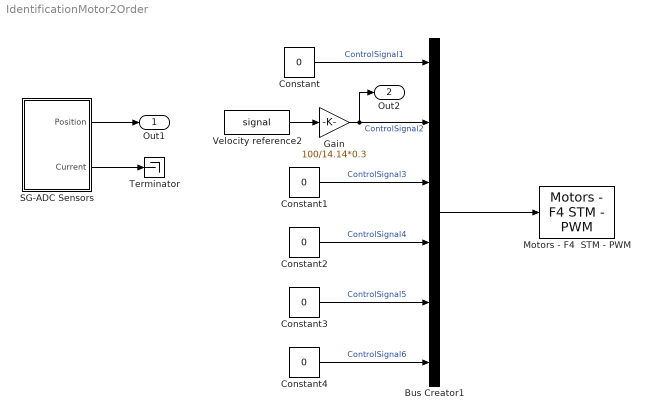
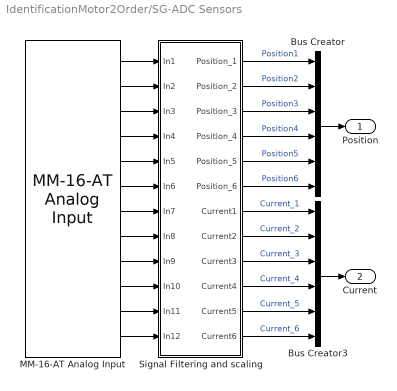
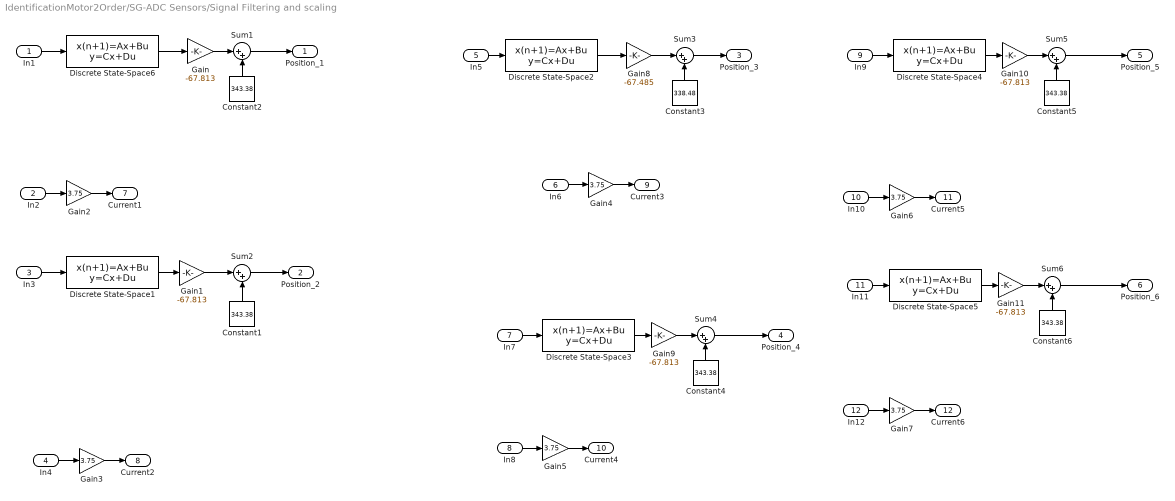
/*
 * IdentificationMotor2Order.c
 *
 * Code generation for model "IdentificationMotor2Order.mdl".
 *
 * Model version              : 1.118
 * Simulink Coder version : 8.0 (R2011a) 09-Mar-2011
 * C source code generated on : Mon Jan 31 16:04:55 2022
 *
 * Target selection: xpctarget.tlc
 * Note: GRT includes extra infrastructure and instrumentation for prototyping
 * Embedded hardware selection: Generic->32-bit x86 compatible
 * Code generation objectives: Unspecified
 * Validation result: Not run
 */

#include "rt_logging_mmi.h"
#include "IdentificationMotor2Order_capi.h"
#include "IdentificationMotor2Order.h"
#include "IdentificationMotor2Order_private.h"
#include <stdio.h>
#include "IdentificationMotor2Order_dt.h"

const uint8_T IdentificationMotor2Order_U8GND = 0U;/* uint8_T ground */

/* Block signals (auto storage) */
BlockIO_IdentificationMotor2Order IdentificationMotor2Order_B;

/* Block states (auto storage) */
D_Work_IdentificationMotor2Order IdentificationMotor2Order_DWork;

/* External outputs (root outports fed by signals with auto storage) */
ExternalOutputs_IdentificationMotor2Order IdentificationMotor2Order_Y;

/* Real-time model */
rtModel_IdentificationMotor2Order IdentificationMotor2Order_rtM_;
rtModel_IdentificationMotor2Order *const IdentificationMotor2Order_rtM =
  &IdentificationMotor2Order_rtM_;

/* xPC Target Async Interrupt Block '<S3>/IRQ Source' */
void xPCISR1(void)
{
  {
    /* RTWBLOCK_START_COMMENT */
    /* RTWBLOCK_START_COMMENT */
    /* RTWBLOCK_START_COMMENT */
    /* RTWBLOCK_START_COMMENT */
    /* Reset subsysRan breadcrumbs */
    srClearBC(IdentificationMotor2Order_DWork.Receive1_SubsysRanBC);

    /* Reset subsysRan breadcrumbs */
    srClearBC(IdentificationMotor2Order_DWork.Transmit1_SubsysRanBC);

    /* Reset subsysRan breadcrumbs */
    srClearBC(IdentificationMotor2Order_DWork.Receive2_SubsysRanBC);

    /* Reset subsysRan breadcrumbs */
    srClearBC(IdentificationMotor2Order_DWork.Transmit2_SubsysRanBC);

    /* Reset subsysRan breadcrumbs */
    srClearBC(IdentificationMotor2Order_DWork.RS232ISR_SubsysRanBC);

    /* RateTransition: '<S3>/Rate Transition' */
    /* RTWBLOCK_START_COMMENT */
    IdentificationMotor2Order_B.RateTransition =
      IdentificationMotor2Order_B.FIFOwrite1_o1;

    /* RateTransition: '<S3>/Rate Transition2' */
    IdentificationMotor2Order_B.RateTransition2 =
      IdentificationMotor2Order_B.FIFOwrite2_o1;
    IdentificationMotor2Or_RS232ISR(0);
  }
}

/* Start for function-call system: '<S3>/RS232 ISR' */
void IdentificationMo_RS232ISR_Start(void)
{
  /* Start for function-call system: '<S16>/Receive 1' */

  /* S-Function Block: <S17>/Read HW FIFO1 (serreadbase) */
  {
    int count = 0;

    // Flush the hardware fifo on startup.
    while (xpcInpB( (unsigned short)(1016 + LSR) ) & LSRDR ) {
      // Read and discard the data.
      xpcInpB( (unsigned short)(1016 + DATA) );
      if (count++ > 1000 ) {
        static char msg[50];
        sprintf( msg, "A UART at address 0x%x is not responding", 1016 );

        // No baseboard UART has that large a hardware fifo!
        rtmSetErrorStatus(IdentificationMotor2Order_rtM, msg);
        return;
      }
    }
  }

  /* Level2 S-Function Block: '<S17>/FIFO write 1' (fifowrite) */
  {
    SimStruct *rts = IdentificationMotor2Order_rtM->childSfunctions[0];
    sfcnStart(rts);
    if (ssGetErrorStatus(rts) != (NULL))
      return;
  }

  /* Start for function-call system: '<S16>/Transmit 1' */

  /* Level2 S-Function Block: '<S19>/FIFO read 1' (fiforead) */
  {
    SimStruct *rts = IdentificationMotor2Order_rtM->childSfunctions[1];
    sfcnStart(rts);
    if (ssGetErrorStatus(rts) != (NULL))
      return;
  }

  /* Start for function-call system: '<S16>/Receive 2' */

  /* Level2 S-Function Block: '<S18>/FIFO write 2' (fifowrite) */
  {
    SimStruct *rts = IdentificationMotor2Order_rtM->childSfunctions[2];
    sfcnStart(rts);
    if (ssGetErrorStatus(rts) != (NULL))
      return;
  }

  /* Start for function-call system: '<S16>/Transmit 2' */

  /* Level2 S-Function Block: '<S20>/FIFO read 2' (fiforead) */
  {
    SimStruct *rts = IdentificationMotor2Order_rtM->childSfunctions[3];
    sfcnStart(rts);
    if (ssGetErrorStatus(rts) != (NULL))
      return;
  }
}

/* Output and update for function-call system: '<S3>/RS232 ISR' */
void IdentificationMotor2Or_RS232ISR(int_T controlPortIdx)
{
  /* S-Function Block: <S16>/Read Int Status FC1 (iquerybase) */
  {
    int base[2] = { (int)1016, (int)0 };

    uint32_T port, max;
    volatile int iir;                  // local interrupt register, per uart
    for (port = 0 ; port < 2 ; port++ ) {
      if (base[port] == 0 ) {
        continue;
      }

      iir = xpcInpB( (unsigned short)(base[port] + IIR) ) & 0xff;

      //printf("lint = 0x%x\n", iir );
      if ((iir & (IIRFEBL | IIR64) ) == (IIRFEBL | IIR64) )
        max = 60;
      else if ((iir & (IIRFEBL | IIR64) ) == IIRFEBL )
        max = 15;
      else
        max = 1;
      *&IdentificationMotor2Order_B.ReadIntStatusFC1_o2 = max;
      iir &= IIRREASON;
      while (iir != 1 )                // Service all reasons
      {
        switch ( iir )
        {
         case 1:                       // No interrupt on this UART
          break;

         case 4:                       // received data available
         case 6:                       // receiver line status, overrun etc.
         case 0xc:                     // character timeout
          //printf("%1xa", base[i]>>8);
          // All three are receive interrupts
          switch (port)
          {
           case 0:
            /* Output and update for function-call system: '<S16>/Receive 1' */

            /* S-Function (serreadbase): '<S17>/Read HW FIFO1' */
            {
              /* S-Function Block: <S17>/Read HW FIFO1 (serreadbase) */
              int status = 0;
              int count = 0;

              // While there is data in the fifo, read it, also read error status.
              // Cap the read length to the interrupt point in 64 byte fifo mode.
              while (((status = xpcInpB( (unsigned short)(1016 + LSR) ) & 0xff )
                      & LSRDR) && (count < 56) ) {
                int c;
                int masked;
                count++;
                c = xpcInpB( (unsigned short)(1016 + DATA) ) & 0xff;// read character
                masked = status & (LSROE | LSRPE | LSRFE | LSRBI);
                ((int_T *)IdentificationMotor2Order_B.ReadHWFIFO1)[count] =
                  (masked << 8) | c;
              }

              ((int_T *)IdentificationMotor2Order_B.ReadHWFIFO1)[0] = count;
            }

            /* Level2 S-Function Block: '<S17>/FIFO write 1' (fifowrite) */
            {
              SimStruct *rts = IdentificationMotor2Order_rtM->childSfunctions[0];
              sfcnOutputs(rts, 1);
            }

            IdentificationMotor2Order_DWork.Receive1_SubsysRanBC = 4;
            break;
          }
          break;

         case 2:                       // Transmitter holding register empty
          //printf("%1xb", base[i]>>8);
          switch (port)
          {
           case 0:
            /* Output and update for function-call system: '<S16>/Transmit 1' */

            /* Level2 S-Function Block: '<S19>/FIFO read 1' (fiforead) */
            {
              SimStruct *rts = IdentificationMotor2Order_rtM->childSfunctions[1];
              sfcnOutputs(rts, 1);
            }

            /* S-Function (serwritebase): '<S19>/Write HW FIFO1' */
            {
              /* S-Function Block: <S19>/Write HW FIFO1 (serwritebase) */
              int_T *IPtr = (int_T *)IdentificationMotor2Order_B.FIFOread1_o1;
              if (IdentificationMotor2Order_B.FIFOread1_o2 > 0 ) {
                // On entry, verify that the transmitter holding register is empty
                // so we can stuff all that came from the software fifo into the
                // hardware fifo.  Assume that the software fifo has a max read
                // parameter that fits with the hardware fifo mode setting.
                if (IPtr[0] == 0 ) {
                  // No data, turn off the transmitter empty interrupt and leave
                  int ier = xpcInpB( (unsigned short)(1016 + IER) ) & 0xff;
                  xpcOutpB( (unsigned short)(1016 + IER), (uint8_T)(ier &
                            ~IERXMT) );
                } else if (xpcInpB( (unsigned short)(1016 + LSR) ) & LSRTHRE ) {
                  int i;

                  // Copy all the data from the input vector to the HW fifo.
                  // The fifo read block MUST have the correct max read value
                  // for the fifo mode.
                  for (i = 0 ; i < IPtr[0] ; i++ ) {
                    xpcOutpB( (ushort_T)(1016 + DATA), (uint8_T)(IPtr[i+1] &
                              0xff) );
                  }
                } else {
                  rtmSetErrorStatus(IdentificationMotor2Order_rtM,
                                    "Attempted write to hardware fifo that isn't empty");
                  return;
                }
              }
            }

            IdentificationMotor2Order_DWork.Transmit1_SubsysRanBC = 4;
            break;
          }
          break;

         case 0:
          // Modem status change
          break;
        }

        // Read IIR again to see if we're done with this UART
        iir = xpcInpB( (unsigned short)(base[port] + IIR) ) & IIRREASON;
      }
    }
  }

  IdentificationMotor2Order_DWork.RS232ISR_SubsysRanBC = 4;
}

/*
 * Output and update for action system:
 *    '<S1>/If Action Subsystem'
 *    '<S1>/If Action Subsystem2'
 *    '<S1>/If Action Subsystem4'
 *    '<S1>/If Action Subsystem6'
 *    '<S1>/If Action Subsystem8'
 *    '<S1>/If Action Subsystem10'
 */
void Identificatio_IfActionSubsystem(real_T rtu_In1, real_T *rty_Out1,
  rtB_IfActionSubsystem_Identific *localB, rtP_IfActionSubsystem_Identific
  *localP)
{
  /* Sum: '<S4>/Sum' incorporates:
   *  Constant: '<S4>/Constant8'
   */
  localB->Sum = rtu_In1 + localP->Constant8_Value;

  /* Rounding: '<S4>/Rounding Function' */
  (*rty_Out1) = ceil(localB->Sum);
}

/*
 * Output and update for action system:
 *    '<S1>/If Action Subsystem1'
 *    '<S1>/If Action Subsystem3'
 *    '<S1>/If Action Subsystem5'
 *    '<S1>/If Action Subsystem7'
 *    '<S1>/If Action Subsystem9'
 *    '<S1>/If Action Subsystem11'
 */
void Identificati_IfActionSubsystem1(real_T rtu_In1, real_T *rty_Out1,
  rtB_IfActionSubsystem1_Identifi *localB, rtP_IfActionSubsystem1_Identifi
  *localP)
{
  /* Gain: '<S5>/Gain' */
  localB->Gain = localP->Gain_Gain * rtu_In1;

  /* Sum: '<S5>/Sum' incorporates:
   *  Constant: '<S5>/Constant8'
   */
  localB->Sum = localB->Gain + localP->Constant8_Value;

  /* Rounding: '<S5>/Rounding Function' */
  (*rty_Out1) = ceil(localB->Sum);
}

/* Model output function */
void IdentificationMotor2Order_output(int_T tid)
{
  real_T u;
  real_T u_0;
  real_T u_1;

  /* RTWBLOCK_START_COMMENT */
  /* Reset subsysRan breadcrumbs */
  srClearBC
    (IdentificationMotor2Order_DWork.IfActionSubsystem.IfActionSubsystem_SubsysRanBC);

  /* Reset subsysRan breadcrumbs */
  srClearBC
    (IdentificationMotor2Order_DWork.IfActionSubsystem1.IfActionSubsystem1_SubsysRanBC);

  /* RTWBLOCK_START_COMMENT */

  /* Level2 S-Function Block: '<S2>/MM-16-AT Analog Input' (addiamondmm16atcustom) */
  {
    SimStruct *rts = IdentificationMotor2Order_rtM->childSfunctions[4];
    sfcnOutputs(rts, 0);
  }

  /* DiscreteStateSpace: '<S21>/Discrete State-Space6' */
  {
    IdentificationMotor2Order_B.DiscreteStateSpace6 =
      (IdentificationMotor2Order_P.DiscreteStateSpace6_C[0])*
      IdentificationMotor2Order_DWork.DiscreteStateSpace6_DSTATE[0]
      + (IdentificationMotor2Order_P.DiscreteStateSpace6_C[1])*
      IdentificationMotor2Order_DWork.DiscreteStateSpace6_DSTATE[1];
    IdentificationMotor2Order_B.DiscreteStateSpace6 +=
      IdentificationMotor2Order_P.DiscreteStateSpace6_D*
      IdentificationMotor2Order_B.MM16ATAnalogInput_o1;
  }

  /* Gain: '<S21>/Gain' */
  IdentificationMotor2Order_B.Gain = IdentificationMotor2Order_P.Gain_Gain *
    IdentificationMotor2Order_B.DiscreteStateSpace6;

  /* Sum: '<S21>/Sum1' incorporates:
   *  Constant: '<S21>/Constant2'
   */
  IdentificationMotor2Order_B.Sum1 = IdentificationMotor2Order_B.Gain +
    IdentificationMotor2Order_P.Constant2_Value;

  /* DiscreteStateSpace: '<S21>/Discrete State-Space1' */
  {
    IdentificationMotor2Order_B.DiscreteStateSpace1 =
      (IdentificationMotor2Order_P.DiscreteStateSpace1_C[0])*
      IdentificationMotor2Order_DWork.DiscreteStateSpace1_DSTATE[0]
      + (IdentificationMotor2Order_P.DiscreteStateSpace1_C[1])*
      IdentificationMotor2Order_DWork.DiscreteStateSpace1_DSTATE[1];
    IdentificationMotor2Order_B.DiscreteStateSpace1 +=
      IdentificationMotor2Order_P.DiscreteStateSpace1_D*
      IdentificationMotor2Order_B.MM16ATAnalogInput_o3;
  }

  /* Gain: '<S21>/Gain1' */
  IdentificationMotor2Order_B.Gain1 = IdentificationMotor2Order_P.Gain1_Gain *
    IdentificationMotor2Order_B.DiscreteStateSpace1;

  /* Sum: '<S21>/Sum2' incorporates:
   *  Constant: '<S21>/Constant1'
   */
  IdentificationMotor2Order_B.Sum2 = IdentificationMotor2Order_B.Gain1 +
    IdentificationMotor2Order_P.Constant1_Value;

  /* DiscreteStateSpace: '<S21>/Discrete State-Space2' */
  {
    IdentificationMotor2Order_B.DiscreteStateSpace2 =
      (IdentificationMotor2Order_P.DiscreteStateSpace2_C[0])*
      IdentificationMotor2Order_DWork.DiscreteStateSpace2_DSTATE[0]
      + (IdentificationMotor2Order_P.DiscreteStateSpace2_C[1])*
      IdentificationMotor2Order_DWork.DiscreteStateSpace2_DSTATE[1];
    IdentificationMotor2Order_B.DiscreteStateSpace2 +=
      IdentificationMotor2Order_P.DiscreteStateSpace2_D*
      IdentificationMotor2Order_B.MM16ATAnalogInput_o5;
  }

  /* Gain: '<S21>/Gain8' */
  IdentificationMotor2Order_B.Gain8 = IdentificationMotor2Order_P.Gain8_Gain *
    IdentificationMotor2Order_B.DiscreteStateSpace2;

  /* Sum: '<S21>/Sum3' incorporates:
   *  Constant: '<S21>/Constant3'
   */
  IdentificationMotor2Order_B.Sum3 = IdentificationMotor2Order_B.Gain8 +
    IdentificationMotor2Order_P.Constant3_Value;

  /* DiscreteStateSpace: '<S21>/Discrete State-Space3' */
  {
    IdentificationMotor2Order_B.DiscreteStateSpace3 =
      (IdentificationMotor2Order_P.DiscreteStateSpace3_C[0])*
      IdentificationMotor2Order_DWork.DiscreteStateSpace3_DSTATE[0]
      + (IdentificationMotor2Order_P.DiscreteStateSpace3_C[1])*
      IdentificationMotor2Order_DWork.DiscreteStateSpace3_DSTATE[1];
    IdentificationMotor2Order_B.DiscreteStateSpace3 +=
      IdentificationMotor2Order_P.DiscreteStateSpace3_D*
      IdentificationMotor2Order_B.MM16ATAnalogInput_o7;
  }

  /* Gain: '<S21>/Gain9' */
  IdentificationMotor2Order_B.Gain9 = IdentificationMotor2Order_P.Gain9_Gain *
    IdentificationMotor2Order_B.DiscreteStateSpace3;

  /* Sum: '<S21>/Sum4' incorporates:
   *  Constant: '<S21>/Constant4'
   */
  IdentificationMotor2Order_B.Sum4 = IdentificationMotor2Order_B.Gain9 +
    IdentificationMotor2Order_P.Constant4_Value;

  /* DiscreteStateSpace: '<S21>/Discrete State-Space4' */
  {
    IdentificationMotor2Order_B.DiscreteStateSpace4 =
      (IdentificationMotor2Order_P.DiscreteStateSpace4_C[0])*
      IdentificationMotor2Order_DWork.DiscreteStateSpace4_DSTATE[0]
      + (IdentificationMotor2Order_P.DiscreteStateSpace4_C[1])*
      IdentificationMotor2Order_DWork.DiscreteStateSpace4_DSTATE[1];
    IdentificationMotor2Order_B.DiscreteStateSpace4 +=
      IdentificationMotor2Order_P.DiscreteStateSpace4_D*
      IdentificationMotor2Order_B.MM16ATAnalogInput_o9;
  }

  /* Gain: '<S21>/Gain10' */
  IdentificationMotor2Order_B.Gain10 = IdentificationMotor2Order_P.Gain10_Gain *
    IdentificationMotor2Order_B.DiscreteStateSpace4;

  /* Sum: '<S21>/Sum5' incorporates:
   *  Constant: '<S21>/Constant5'
   */
  IdentificationMotor2Order_B.Sum5 = IdentificationMotor2Order_B.Gain10 +
    IdentificationMotor2Order_P.Constant5_Value;

  /* DiscreteStateSpace: '<S21>/Discrete State-Space5' */
  {
    IdentificationMotor2Order_B.DiscreteStateSpace5 =
      (IdentificationMotor2Order_P.DiscreteStateSpace5_C[0])*
      IdentificationMotor2Order_DWork.DiscreteStateSpace5_DSTATE[0]
      + (IdentificationMotor2Order_P.DiscreteStateSpace5_C[1])*
      IdentificationMotor2Order_DWork.DiscreteStateSpace5_DSTATE[1];
    IdentificationMotor2Order_B.DiscreteStateSpace5 +=
      IdentificationMotor2Order_P.DiscreteStateSpace5_D*
      IdentificationMotor2Order_B.MM16ATAnalogInput_o11;
  }

  /* Gain: '<S21>/Gain11' */
  IdentificationMotor2Order_B.Gain11 = IdentificationMotor2Order_P.Gain11_Gain *
    IdentificationMotor2Order_B.DiscreteStateSpace5;

  /* Sum: '<S21>/Sum6' incorporates:
   *  Constant: '<S21>/Constant6'
   */
  IdentificationMotor2Order_B.Sum6 = IdentificationMotor2Order_B.Gain11 +
    IdentificationMotor2Order_P.Constant6_Value;

  /* Outport: '<Root>/Out1' */
  IdentificationMotor2Order_Y.Out1[0] = IdentificationMotor2Order_B.Sum1;
  IdentificationMotor2Order_Y.Out1[1] = IdentificationMotor2Order_B.Sum2;
  IdentificationMotor2Order_Y.Out1[2] = IdentificationMotor2Order_B.Sum3;
  IdentificationMotor2Order_Y.Out1[3] = IdentificationMotor2Order_B.Sum4;
  IdentificationMotor2Order_Y.Out1[4] = IdentificationMotor2Order_B.Sum5;
  IdentificationMotor2Order_Y.Out1[5] = IdentificationMotor2Order_B.Sum6;

  /* Gain: '<S21>/Gain2' */
  IdentificationMotor2Order_B.Gain2 = IdentificationMotor2Order_P.Gain2_Gain *
    IdentificationMotor2Order_B.MM16ATAnalogInput_o2;

  /* Gain: '<S21>/Gain3' */
  IdentificationMotor2Order_B.Gain3 = IdentificationMotor2Order_P.Gain3_Gain *
    IdentificationMotor2Order_B.MM16ATAnalogInput_o4;

  /* Gain: '<S21>/Gain4' */
  IdentificationMotor2Order_B.Gain4 = IdentificationMotor2Order_P.Gain4_Gain *
    IdentificationMotor2Order_B.MM16ATAnalogInput_o6;

  /* Gain: '<S21>/Gain5' */
  IdentificationMotor2Order_B.Gain5 = IdentificationMotor2Order_P.Gain5_Gain *
    IdentificationMotor2Order_B.MM16ATAnalogInput_o8;

  /* Gain: '<S21>/Gain6' */
  IdentificationMotor2Order_B.Gain6 = IdentificationMotor2Order_P.Gain6_Gain *
    IdentificationMotor2Order_B.MM16ATAnalogInput_o10;

  /* Gain: '<S21>/Gain7' */
  IdentificationMotor2Order_B.Gain7 = IdentificationMotor2Order_P.Gain7_Gain *
    IdentificationMotor2Order_B.MM16ATAnalogInput_o12;

  /* FromWorkspace: '<Root>/Velocity reference2' */
  {
    real_T *pDataValues = (real_T *)
      IdentificationMotor2Order_DWork.Velocityreference2_PWORK.DataPtr;
    real_T *pTimeValues = (real_T *)
      IdentificationMotor2Order_DWork.Velocityreference2_PWORK.TimePtr;
    int_T currTimeIndex =
      IdentificationMotor2Order_DWork.Velocityreference2_IWORK.PrevIndex;
    real_T t = IdentificationMotor2Order_rtM->Timing.t[0];
    if (t >= pTimeValues[399]) {
      IdentificationMotor2Order_B.Velocityreference2 = pDataValues[399];
    } else {
      /* get index */
      if (t <= pTimeValues[0]) {
        currTimeIndex = 0;
      } else if (t >= pTimeValues[399]) {
        currTimeIndex = 398;
      } else {
        if (t < pTimeValues[currTimeIndex]) {
          while (t < pTimeValues[currTimeIndex]) {
            currTimeIndex--;
          }
        } else {
          while (t >= pTimeValues[currTimeIndex + 1]) {
            currTimeIndex++;
          }
        }
      }

      IdentificationMotor2Order_DWork.Velocityreference2_IWORK.PrevIndex =
        currTimeIndex;

      /* post output */
      {
        real_T t1 = pTimeValues[currTimeIndex];
        real_T t2 = pTimeValues[currTimeIndex + 1];
        if (t1 == t2) {
          if (t < t1) {
            IdentificationMotor2Order_B.Velocityreference2 =
              pDataValues[currTimeIndex];
          } else {
            IdentificationMotor2Order_B.Velocityreference2 =
              pDataValues[currTimeIndex + 1];
          }
        } else {
          real_T f1 = (t2 - t) / (t2 - t1);
          real_T f2 = 1.0 - f1;
          real_T d1;
          real_T d2;
          int_T TimeIndex= currTimeIndex;
          d1 = pDataValues[TimeIndex];
          d2 = pDataValues[TimeIndex + 1];
          IdentificationMotor2Order_B.Velocityreference2 = (real_T)
            rtInterpolate(d1, d2, f1, f2);
          pDataValues += 400;
        }
      }
    }
  }

  /* Gain: '<Root>/Gain' */
  IdentificationMotor2Order_B.ControlSignal2 =
    IdentificationMotor2Order_P.Gain_Gain_b *
    IdentificationMotor2Order_B.Velocityreference2;

  /* Outport: '<Root>/Out2' */
  IdentificationMotor2Order_Y.Out2 = IdentificationMotor2Order_B.ControlSignal2;

  /* Saturate: '<S1>/Saturation' incorporates:
   *  Constant: '<Root>/Constant'
   */
  u = IdentificationMotor2Order_P.Constant_Value;
  u_0 = IdentificationMotor2Order_P.Saturation_LowerSat;
  u_1 = IdentificationMotor2Order_P.Saturation_UpperSat;
  IdentificationMotor2Order_B.Saturation = u >= u_1 ? u_1 : u <= u_0 ? u_0 : u;

  /* If: '<S1>/If' */
  if ((IdentificationMotor2Order_B.Saturation >= 0.0) &&
      (IdentificationMotor2Order_B.Saturation <= 100.0)) {
    /* Outputs for IfAction SubSystem: '<S1>/If Action Subsystem' incorporates:
     *  ActionPort: '<S4>/Action Port'
     */
    Identificatio_IfActionSubsystem(IdentificationMotor2Order_B.Saturation,
      &IdentificationMotor2Order_B.Merge,
      &IdentificationMotor2Order_B.IfActionSubsystem,
      (rtP_IfActionSubsystem_Identific *)
      &IdentificationMotor2Order_P.IfActionSubsystem);

    /* End of Outputs for SubSystem: '<S1>/If Action Subsystem' */
  } else {
    if ((IdentificationMotor2Order_B.Saturation < 0.0) &&
        (IdentificationMotor2Order_B.Saturation >= -100.0)) {
      /* Outputs for IfAction SubSystem: '<S1>/If Action Subsystem1' incorporates:
       *  ActionPort: '<S5>/Action Port'
       */
      Identificati_IfActionSubsystem1(IdentificationMotor2Order_B.Saturation,
        &IdentificationMotor2Order_B.Merge,
        &IdentificationMotor2Order_B.IfActionSubsystem1,
        (rtP_IfActionSubsystem1_Identifi *)
        &IdentificationMotor2Order_P.IfActionSubsystem1);

      /* End of Outputs for SubSystem: '<S1>/If Action Subsystem1' */
    }
  }

  /* End of If: '<S1>/If' */

  /* Saturate: '<S1>/Saturation1' */
  u = IdentificationMotor2Order_B.ControlSignal2;
  u_0 = IdentificationMotor2Order_P.Saturation1_LowerSat;
  u_1 = IdentificationMotor2Order_P.Saturation1_UpperSat;
  IdentificationMotor2Order_B.Saturation1 = u >= u_1 ? u_1 : u <= u_0 ? u_0 : u;

  /* If: '<S1>/If1' */
  if ((IdentificationMotor2Order_B.Saturation1 >= 0.0) &&
      (IdentificationMotor2Order_B.Saturation1 <= 100.0)) {
    /* Outputs for IfAction SubSystem: '<S1>/If Action Subsystem2' incorporates:
     *  ActionPort: '<S8>/Action Port'
     */
    Identificatio_IfActionSubsystem(IdentificationMotor2Order_B.Saturation1,
      &IdentificationMotor2Order_B.Merge1,
      &IdentificationMotor2Order_B.IfActionSubsystem2,
      (rtP_IfActionSubsystem_Identific *)
      &IdentificationMotor2Order_P.IfActionSubsystem2);

    /* End of Outputs for SubSystem: '<S1>/If Action Subsystem2' */
  } else {
    if ((IdentificationMotor2Order_B.Saturation1 < 0.0) &&
        (IdentificationMotor2Order_B.Saturation1 >= -100.0)) {
      /* Outputs for IfAction SubSystem: '<S1>/If Action Subsystem3' incorporates:
       *  ActionPort: '<S9>/Action Port'
       */
      Identificati_IfActionSubsystem1(IdentificationMotor2Order_B.Saturation1,
        &IdentificationMotor2Order_B.Merge1,
        &IdentificationMotor2Order_B.IfActionSubsystem3,
        (rtP_IfActionSubsystem1_Identifi *)
        &IdentificationMotor2Order_P.IfActionSubsystem3);

      /* End of Outputs for SubSystem: '<S1>/If Action Subsystem3' */
    }
  }

  /* End of If: '<S1>/If1' */

  /* Saturate: '<S1>/Saturation2' incorporates:
   *  Constant: '<Root>/Constant1'
   */
  u = IdentificationMotor2Order_P.Constant1_Value_l;
  u_0 = IdentificationMotor2Order_P.Saturation2_LowerSat;
  u_1 = IdentificationMotor2Order_P.Saturation2_UpperSat;
  IdentificationMotor2Order_B.Saturation2 = u >= u_1 ? u_1 : u <= u_0 ? u_0 : u;

  /* If: '<S1>/If2' */
  if ((IdentificationMotor2Order_B.Saturation2 >= 0.0) &&
      (IdentificationMotor2Order_B.Saturation2 <= 100.0)) {
    /* Outputs for IfAction SubSystem: '<S1>/If Action Subsystem4' incorporates:
     *  ActionPort: '<S10>/Action Port'
     */
    Identificatio_IfActionSubsystem(IdentificationMotor2Order_B.Saturation2,
      &IdentificationMotor2Order_B.Merge2,
      &IdentificationMotor2Order_B.IfActionSubsystem4,
      (rtP_IfActionSubsystem_Identific *)
      &IdentificationMotor2Order_P.IfActionSubsystem4);

    /* End of Outputs for SubSystem: '<S1>/If Action Subsystem4' */
  } else {
    if ((IdentificationMotor2Order_B.Saturation2 < 0.0) &&
        (IdentificationMotor2Order_B.Saturation2 >= -100.0)) {
      /* Outputs for IfAction SubSystem: '<S1>/If Action Subsystem5' incorporates:
       *  ActionPort: '<S11>/Action Port'
       */
      Identificati_IfActionSubsystem1(IdentificationMotor2Order_B.Saturation2,
        &IdentificationMotor2Order_B.Merge2,
        &IdentificationMotor2Order_B.IfActionSubsystem5,
        (rtP_IfActionSubsystem1_Identifi *)
        &IdentificationMotor2Order_P.IfActionSubsystem5);

      /* End of Outputs for SubSystem: '<S1>/If Action Subsystem5' */
    }
  }

  /* End of If: '<S1>/If2' */

  /* Saturate: '<S1>/Saturation3' incorporates:
   *  Constant: '<Root>/Constant2'
   */
  u = IdentificationMotor2Order_P.Constant2_Value_e;
  u_0 = IdentificationMotor2Order_P.Saturation3_LowerSat;
  u_1 = IdentificationMotor2Order_P.Saturation3_UpperSat;
  IdentificationMotor2Order_B.Saturation3 = u >= u_1 ? u_1 : u <= u_0 ? u_0 : u;

  /* If: '<S1>/If3' */
  if ((IdentificationMotor2Order_B.Saturation3 >= 0.0) &&
      (IdentificationMotor2Order_B.Saturation3 <= 100.0)) {
    /* Outputs for IfAction SubSystem: '<S1>/If Action Subsystem6' incorporates:
     *  ActionPort: '<S12>/Action Port'
     */
    Identificatio_IfActionSubsystem(IdentificationMotor2Order_B.Saturation3,
      &IdentificationMotor2Order_B.Merge3,
      &IdentificationMotor2Order_B.IfActionSubsystem6,
      (rtP_IfActionSubsystem_Identific *)
      &IdentificationMotor2Order_P.IfActionSubsystem6);

    /* End of Outputs for SubSystem: '<S1>/If Action Subsystem6' */
  } else {
    if ((IdentificationMotor2Order_B.Saturation3 < 0.0) &&
        (IdentificationMotor2Order_B.Saturation3 >= -100.0)) {
      /* Outputs for IfAction SubSystem: '<S1>/If Action Subsystem7' incorporates:
       *  ActionPort: '<S13>/Action Port'
       */
      Identificati_IfActionSubsystem1(IdentificationMotor2Order_B.Saturation3,
        &IdentificationMotor2Order_B.Merge3,
        &IdentificationMotor2Order_B.IfActionSubsystem7,
        (rtP_IfActionSubsystem1_Identifi *)
        &IdentificationMotor2Order_P.IfActionSubsystem7);

      /* End of Outputs for SubSystem: '<S1>/If Action Subsystem7' */
    }
  }

  /* End of If: '<S1>/If3' */

  /* Saturate: '<S1>/Saturation4' incorporates:
   *  Constant: '<Root>/Constant3'
   */
  u = IdentificationMotor2Order_P.Constant3_Value_a;
  u_0 = IdentificationMotor2Order_P.Saturation4_LowerSat;
  u_1 = IdentificationMotor2Order_P.Saturation4_UpperSat;
  IdentificationMotor2Order_B.Saturation4 = u >= u_1 ? u_1 : u <= u_0 ? u_0 : u;

  /* If: '<S1>/If4' */
  if ((IdentificationMotor2Order_B.Saturation4 >= 0.0) &&
      (IdentificationMotor2Order_B.Saturation4 <= 100.0)) {
    /* Outputs for IfAction SubSystem: '<S1>/If Action Subsystem8' incorporates:
     *  ActionPort: '<S14>/Action Port'
     */
    Identificatio_IfActionSubsystem(IdentificationMotor2Order_B.Saturation4,
      &IdentificationMotor2Order_B.Merge4,
      &IdentificationMotor2Order_B.IfActionSubsystem8,
      (rtP_IfActionSubsystem_Identific *)
      &IdentificationMotor2Order_P.IfActionSubsystem8);

    /* End of Outputs for SubSystem: '<S1>/If Action Subsystem8' */
  } else {
    if ((IdentificationMotor2Order_B.Saturation4 < 0.0) &&
        (IdentificationMotor2Order_B.Saturation4 >= -100.0)) {
      /* Outputs for IfAction SubSystem: '<S1>/If Action Subsystem9' incorporates:
       *  ActionPort: '<S15>/Action Port'
       */
      Identificati_IfActionSubsystem1(IdentificationMotor2Order_B.Saturation4,
        &IdentificationMotor2Order_B.Merge4,
        &IdentificationMotor2Order_B.IfActionSubsystem9,
        (rtP_IfActionSubsystem1_Identifi *)
        &IdentificationMotor2Order_P.IfActionSubsystem9);

      /* End of Outputs for SubSystem: '<S1>/If Action Subsystem9' */
    }
  }

  /* End of If: '<S1>/If4' */

  /* Saturate: '<S1>/Saturation5' incorporates:
   *  Constant: '<Root>/Constant4'
   */
  u = IdentificationMotor2Order_P.Constant4_Value_g;
  u_0 = IdentificationMotor2Order_P.Saturation5_LowerSat;
  u_1 = IdentificationMotor2Order_P.Saturation5_UpperSat;
  IdentificationMotor2Order_B.Saturation5 = u >= u_1 ? u_1 : u <= u_0 ? u_0 : u;

  /* If: '<S1>/If5' */
  if ((IdentificationMotor2Order_B.Saturation5 >= 0.0) &&
      (IdentificationMotor2Order_B.Saturation5 <= 100.0)) {
    /* Outputs for IfAction SubSystem: '<S1>/If Action Subsystem10' incorporates:
     *  ActionPort: '<S6>/Action Port'
     */
    Identificatio_IfActionSubsystem(IdentificationMotor2Order_B.Saturation5,
      &IdentificationMotor2Order_B.Merge5,
      &IdentificationMotor2Order_B.IfActionSubsystem10,
      (rtP_IfActionSubsystem_Identific *)
      &IdentificationMotor2Order_P.IfActionSubsystem10);

    /* End of Outputs for SubSystem: '<S1>/If Action Subsystem10' */
  } else {
    if ((IdentificationMotor2Order_B.Saturation5 < 0.0) &&
        (IdentificationMotor2Order_B.Saturation5 >= -100.0)) {
      /* Outputs for IfAction SubSystem: '<S1>/If Action Subsystem11' incorporates:
       *  ActionPort: '<S7>/Action Port'
       */
      Identificati_IfActionSubsystem1(IdentificationMotor2Order_B.Saturation5,
        &IdentificationMotor2Order_B.Merge5,
        &IdentificationMotor2Order_B.IfActionSubsystem11,
        (rtP_IfActionSubsystem1_Identifi *)
        &IdentificationMotor2Order_P.IfActionSubsystem11);

      /* End of Outputs for SubSystem: '<S1>/If Action Subsystem11' */
    }
  }

  /* End of If: '<S1>/If5' */

  /* Level2 S-Function Block: '<S1>/ASCII Encode ' (asciiencode) */
  {
    SimStruct *rts = IdentificationMotor2Order_rtM->childSfunctions[5];
    sfcnOutputs(rts, 0);
  }

  /* Level2 S-Function Block: '<S3>/FIFO write 1' (fifowrite) */
  {
    SimStruct *rts = IdentificationMotor2Order_rtM->childSfunctions[6];
    sfcnOutputs(rts, 0);
  }

  /* S-Function Block: <S3>/Enable TX 1 (sertxenablebase) */
  if (IdentificationMotor2Order_B.FIFOwrite1_o2 == 1 ) {
    uint8_T reg = (uint8_T)xpcInpB( (unsigned short)(1016 + IER) ) & 0xff;
    xpcOutpB( (unsigned short)(1016 + IER), (uint8_T)(reg & ~IERXMT) );
    reg |= IERXMT;
    xpcOutpB( (unsigned short)(1016 + IER), reg );
  }

  /* Level2 S-Function Block: '<S3>/FIFO write 2' (fifowrite) */
  {
    SimStruct *rts = IdentificationMotor2Order_rtM->childSfunctions[7];
    sfcnOutputs(rts, 0);
  }

  /* RateTransition: '<S3>/Rate Transition1' */
  IdentificationMotor2Order_B.RateTransition1 =
    IdentificationMotor2Order_B.FIFOwrite1;

  /* Level2 S-Function Block: '<S3>/FIFO read 1' (fiforead) */
  {
    SimStruct *rts = IdentificationMotor2Order_rtM->childSfunctions[8];
    sfcnOutputs(rts, 0);
  }

  /* RateTransition: '<S3>/Rate Transition3' */
  IdentificationMotor2Order_B.RateTransition3 =
    IdentificationMotor2Order_B.FIFOwrite2;

  /* Level2 S-Function Block: '<S3>/FIFO read 2' (fiforead) */
  {
    SimStruct *rts = IdentificationMotor2Order_rtM->childSfunctions[9];
    sfcnOutputs(rts, 0);
  }

  /* Level2 S-Function Block: '<S3>/Setup1' (sersetupbase) */
  {
    SimStruct *rts = IdentificationMotor2Order_rtM->childSfunctions[10];
    sfcnOutputs(rts, 0);
  }

  /* Level2 S-Function Block: '<S3>/Setup2' (sersetupbase) */
  {
    SimStruct *rts = IdentificationMotor2Order_rtM->childSfunctions[11];
    sfcnOutputs(rts, 0);
  }

  /* tid is required for a uniform function interface.
   * Argument tid is not used in the function. */
  UNUSED_PARAMETER(tid);
}

/* Model update function */
void IdentificationMotor2Order_update(int_T tid)
{
  /* Update for DiscreteStateSpace: '<S21>/Discrete State-Space6' */
  {
    real_T xnew[2];
    xnew[0] = (IdentificationMotor2Order_P.DiscreteStateSpace6_A[0])*
      IdentificationMotor2Order_DWork.DiscreteStateSpace6_DSTATE[0]
      + (IdentificationMotor2Order_P.DiscreteStateSpace6_A[1])*
      IdentificationMotor2Order_DWork.DiscreteStateSpace6_DSTATE[1];
    xnew[0] += (IdentificationMotor2Order_P.DiscreteStateSpace6_B[0])*
      IdentificationMotor2Order_B.MM16ATAnalogInput_o1;
    xnew[1] = (IdentificationMotor2Order_P.DiscreteStateSpace6_A[2])*
      IdentificationMotor2Order_DWork.DiscreteStateSpace6_DSTATE[0]
      + (IdentificationMotor2Order_P.DiscreteStateSpace6_A[3])*
      IdentificationMotor2Order_DWork.DiscreteStateSpace6_DSTATE[1];
    xnew[1] += (IdentificationMotor2Order_P.DiscreteStateSpace6_B[1])*
      IdentificationMotor2Order_B.MM16ATAnalogInput_o1;
    (void) memcpy(&IdentificationMotor2Order_DWork.DiscreteStateSpace6_DSTATE[0],
                  xnew,
                  sizeof(real_T)*2);
  }

  /* Update for DiscreteStateSpace: '<S21>/Discrete State-Space1' */
  {
    real_T xnew[2];
    xnew[0] = (IdentificationMotor2Order_P.DiscreteStateSpace1_A[0])*
      IdentificationMotor2Order_DWork.DiscreteStateSpace1_DSTATE[0]
      + (IdentificationMotor2Order_P.DiscreteStateSpace1_A[1])*
      IdentificationMotor2Order_DWork.DiscreteStateSpace1_DSTATE[1];
    xnew[0] += (IdentificationMotor2Order_P.DiscreteStateSpace1_B[0])*
      IdentificationMotor2Order_B.MM16ATAnalogInput_o3;
    xnew[1] = (IdentificationMotor2Order_P.DiscreteStateSpace1_A[2])*
      IdentificationMotor2Order_DWork.DiscreteStateSpace1_DSTATE[0]
      + (IdentificationMotor2Order_P.DiscreteStateSpace1_A[3])*
      IdentificationMotor2Order_DWork.DiscreteStateSpace1_DSTATE[1];
    xnew[1] += (IdentificationMotor2Order_P.DiscreteStateSpace1_B[1])*
      IdentificationMotor2Order_B.MM16ATAnalogInput_o3;
    (void) memcpy(&IdentificationMotor2Order_DWork.DiscreteStateSpace1_DSTATE[0],
                  xnew,
                  sizeof(real_T)*2);
  }

  /* Update for DiscreteStateSpace: '<S21>/Discrete State-Space2' */
  {
    real_T xnew[2];
    xnew[0] = (IdentificationMotor2Order_P.DiscreteStateSpace2_A[0])*
      IdentificationMotor2Order_DWork.DiscreteStateSpace2_DSTATE[0]
      + (IdentificationMotor2Order_P.DiscreteStateSpace2_A[1])*
      IdentificationMotor2Order_DWork.DiscreteStateSpace2_DSTATE[1];
    xnew[0] += (IdentificationMotor2Order_P.DiscreteStateSpace2_B[0])*
      IdentificationMotor2Order_B.MM16ATAnalogInput_o5;
    xnew[1] = (IdentificationMotor2Order_P.DiscreteStateSpace2_A[2])*
      IdentificationMotor2Order_DWork.DiscreteStateSpace2_DSTATE[0]
      + (IdentificationMotor2Order_P.DiscreteStateSpace2_A[3])*
      IdentificationMotor2Order_DWork.DiscreteStateSpace2_DSTATE[1];
    xnew[1] += (IdentificationMotor2Order_P.DiscreteStateSpace2_B[1])*
      IdentificationMotor2Order_B.MM16ATAnalogInput_o5;
    (void) memcpy(&IdentificationMotor2Order_DWork.DiscreteStateSpace2_DSTATE[0],
                  xnew,
                  sizeof(real_T)*2);
  }

  /* Update for DiscreteStateSpace: '<S21>/Discrete State-Space3' */
  {
    real_T xnew[2];
    xnew[0] = (IdentificationMotor2Order_P.DiscreteStateSpace3_A[0])*
      IdentificationMotor2Order_DWork.DiscreteStateSpace3_DSTATE[0]
      + (IdentificationMotor2Order_P.DiscreteStateSpace3_A[1])*
      IdentificationMotor2Order_DWork.DiscreteStateSpace3_DSTATE[1];
    xnew[0] += (IdentificationMotor2Order_P.DiscreteStateSpace3_B[0])*
      IdentificationMotor2Order_B.MM16ATAnalogInput_o7;
    xnew[1] = (IdentificationMotor2Order_P.DiscreteStateSpace3_A[2])*
      IdentificationMotor2Order_DWork.DiscreteStateSpace3_DSTATE[0]
      + (IdentificationMotor2Order_P.DiscreteStateSpace3_A[3])*
      IdentificationMotor2Order_DWork.DiscreteStateSpace3_DSTATE[1];
    xnew[1] += (IdentificationMotor2Order_P.DiscreteStateSpace3_B[1])*
      IdentificationMotor2Order_B.MM16ATAnalogInput_o7;
    (void) memcpy(&IdentificationMotor2Order_DWork.DiscreteStateSpace3_DSTATE[0],
                  xnew,
                  sizeof(real_T)*2);
  }

  /* Update for DiscreteStateSpace: '<S21>/Discrete State-Space4' */
  {
    real_T xnew[2];
    xnew[0] = (IdentificationMotor2Order_P.DiscreteStateSpace4_A[0])*
      IdentificationMotor2Order_DWork.DiscreteStateSpace4_DSTATE[0]
      + (IdentificationMotor2Order_P.DiscreteStateSpace4_A[1])*
      IdentificationMotor2Order_DWork.DiscreteStateSpace4_DSTATE[1];
    xnew[0] += (IdentificationMotor2Order_P.DiscreteStateSpace4_B[0])*
      IdentificationMotor2Order_B.MM16ATAnalogInput_o9;
    xnew[1] = (IdentificationMotor2Order_P.DiscreteStateSpace4_A[2])*
      IdentificationMotor2Order_DWork.DiscreteStateSpace4_DSTATE[0]
      + (IdentificationMotor2Order_P.DiscreteStateSpace4_A[3])*
      IdentificationMotor2Order_DWork.DiscreteStateSpace4_DSTATE[1];
    xnew[1] += (IdentificationMotor2Order_P.DiscreteStateSpace4_B[1])*
      IdentificationMotor2Order_B.MM16ATAnalogInput_o9;
    (void) memcpy(&IdentificationMotor2Order_DWork.DiscreteStateSpace4_DSTATE[0],
                  xnew,
                  sizeof(real_T)*2);
  }

  /* Update for DiscreteStateSpace: '<S21>/Discrete State-Space5' */
  {
    real_T xnew[2];
    xnew[0] = (IdentificationMotor2Order_P.DiscreteStateSpace5_A[0])*
      IdentificationMotor2Order_DWork.DiscreteStateSpace5_DSTATE[0]
      + (IdentificationMotor2Order_P.DiscreteStateSpace5_A[1])*
      IdentificationMotor2Order_DWork.DiscreteStateSpace5_DSTATE[1];
    xnew[0] += (IdentificationMotor2Order_P.DiscreteStateSpace5_B[0])*
      IdentificationMotor2Order_B.MM16ATAnalogInput_o11;
    xnew[1] = (IdentificationMotor2Order_P.DiscreteStateSpace5_A[2])*
      IdentificationMotor2Order_DWork.DiscreteStateSpace5_DSTATE[0]
      + (IdentificationMotor2Order_P.DiscreteStateSpace5_A[3])*
      IdentificationMotor2Order_DWork.DiscreteStateSpace5_DSTATE[1];
    xnew[1] += (IdentificationMotor2Order_P.DiscreteStateSpace5_B[1])*
      IdentificationMotor2Order_B.MM16ATAnalogInput_o11;
    (void) memcpy(&IdentificationMotor2Order_DWork.DiscreteStateSpace5_DSTATE[0],
                  xnew,
                  sizeof(real_T)*2);
  }

  /* Update absolute time for base rate */
  /* The "clockTick0" counts the number of times the code of this task has
   * been executed. The absolute time is the multiplication of "clockTick0"
   * and "Timing.stepSize0". Size of "clockTick0" ensures timer will not
   * overflow during the application lifespan selected.
   * Timer of this task consists of two 32 bit unsigned integers.
   * The two integers represent the low bits Timing.clockTick0 and the high bits
   * Timing.clockTickH0. When the low bit overflows to 0, the high bits increment.
   */
  if (!(++IdentificationMotor2Order_rtM->Timing.clockTick0)) {
    ++IdentificationMotor2Order_rtM->Timing.clockTickH0;
  }

  IdentificationMotor2Order_rtM->Timing.t[0] =
    IdentificationMotor2Order_rtM->Timing.clockTick0 *
    IdentificationMotor2Order_rtM->Timing.stepSize0 +
    IdentificationMotor2Order_rtM->Timing.clockTickH0 *
    IdentificationMotor2Order_rtM->Timing.stepSize0 * 4294967296.0;
  switch (IdentificationMotor2Order_rtM->Timing.rtmDbBufReadBuf1) {
   case 0:
    IdentificationMotor2Order_rtM->Timing.rtmDbBufWriteBuf1 = 1;
    break;

   case 1:
    IdentificationMotor2Order_rtM->Timing.rtmDbBufWriteBuf1 = 0;
    break;

   default:
    IdentificationMotor2Order_rtM->Timing.rtmDbBufWriteBuf1 =
      !IdentificationMotor2Order_rtM->Timing.rtmDbBufLastBufWr1;
    break;
  }

  IdentificationMotor2Order_rtM->
    Timing.rtmDbBufClockTick1
    [IdentificationMotor2Order_rtM->Timing.rtmDbBufWriteBuf1] =
    IdentificationMotor2Order_rtM->Timing.clockTick0;
  IdentificationMotor2Order_rtM->
    Timing.rtmDbBufClockTickH1
    [IdentificationMotor2Order_rtM->Timing.rtmDbBufWriteBuf1] =
    IdentificationMotor2Order_rtM->Timing.clockTickH0;
  IdentificationMotor2Order_rtM->Timing.rtmDbBufLastBufWr1 =
    IdentificationMotor2Order_rtM->Timing.rtmDbBufWriteBuf1;
  IdentificationMotor2Order_rtM->Timing.rtmDbBufWriteBuf1 = 0xFF;

  /* tid is required for a uniform function interface.
   * Argument tid is not used in the function. */
  UNUSED_PARAMETER(tid);
}
